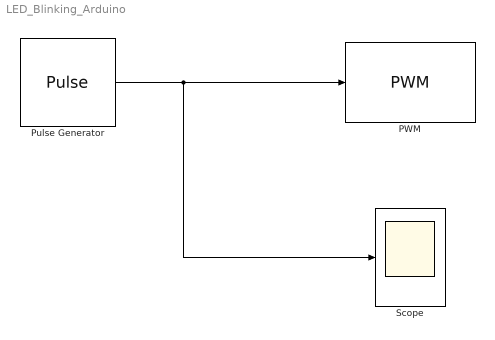
/*
 * File: LED_Blinking_Arduino.c
 *
 * Code generated for Simulink model 'LED_Blinking_Arduino'.
 *
 * Model version                  : 1.7
 * Simulink Coder version         : 8.10 (R2016a) 10-Feb-2016
 * C/C++ source code generated on : Fri Jan 31 23:42:24 2020
 *
 * Target selection: ert.tlc
 * Embedded hardware selection: Atmel->AVR
 * Code generation objectives: Unspecified
 * Validation result: Not run
 */

#include "LED_Blinking_Arduino.h"
#include "LED_Blinking_Arduino_private.h"

/* Block states (auto storage) */
DW_LED_Blinking_Arduino_T LED_Blinking_Arduino_DW;

/* Real-time model */
RT_MODEL_LED_Blinking_Arduino_T LED_Blinking_Arduino_M_;
RT_MODEL_LED_Blinking_Arduino_T *const LED_Blinking_Arduino_M =
  &LED_Blinking_Arduino_M_;

/* Model step function */
void LED_Blinking_Arduino_step(void)
{
  real_T rtb_PulseGenerator;
  uint8_T rtb_PulseGenerator_0;

  /* DiscretePulseGenerator: '<Root>/Pulse Generator' */
  rtb_PulseGenerator = (LED_Blinking_Arduino_DW.clockTickCounter <
                        LED_Blinking_Arduino_P.PulseGenerator_Duty) &&
    (LED_Blinking_Arduino_DW.clockTickCounter >= 0L) ?
    LED_Blinking_Arduino_P.PulseGenerator_Amp : 0.0;
  if (LED_Blinking_Arduino_DW.clockTickCounter >=
      LED_Blinking_Arduino_P.PulseGenerator_Period - 1.0) {
    LED_Blinking_Arduino_DW.clockTickCounter = 0L;
  } else {
    LED_Blinking_Arduino_DW.clockTickCounter++;
  }

  /* End of DiscretePulseGenerator: '<Root>/Pulse Generator' */

  /* DataTypeConversion: '<S1>/Data Type Conversion' */
  if (rtb_PulseGenerator < 256.0) {
    if (rtb_PulseGenerator >= 0.0) {
      rtb_PulseGenerator_0 = (uint8_T)rtb_PulseGenerator;
    } else {
      rtb_PulseGenerator_0 = 0U;
    }
  } else {
    rtb_PulseGenerator_0 = MAX_uint8_T;
  }

  /* End of DataTypeConversion: '<S1>/Data Type Conversion' */

  /* S-Function (arduinoanalogoutput_sfcn): '<S1>/PWM' */
  MW_analogWrite(LED_Blinking_Arduino_P.PWM_pinNumber, rtb_PulseGenerator_0);
}
